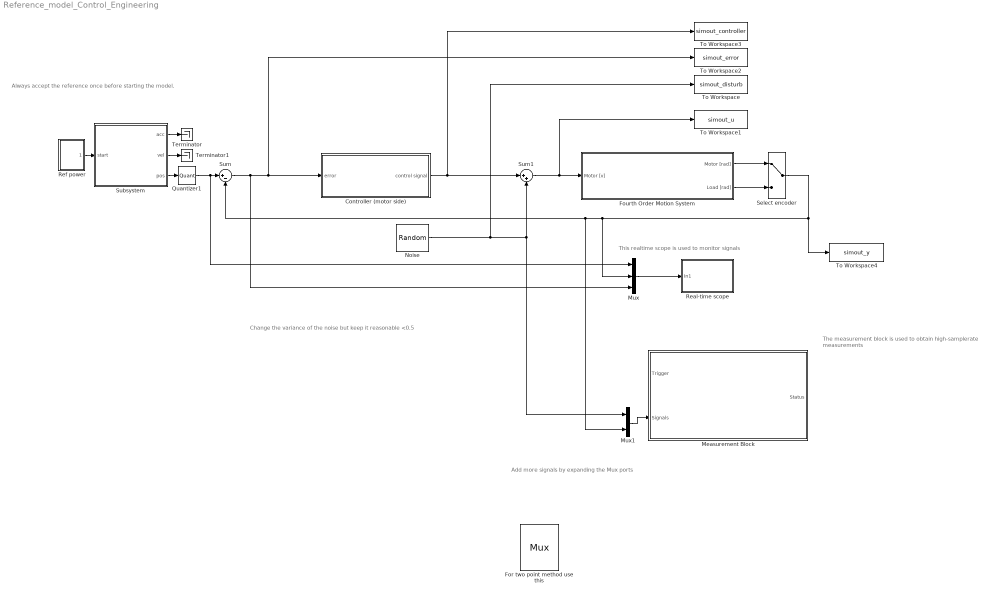
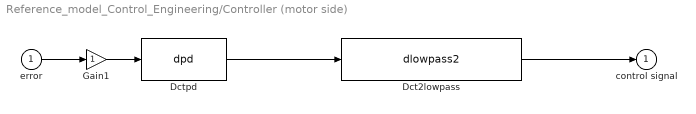
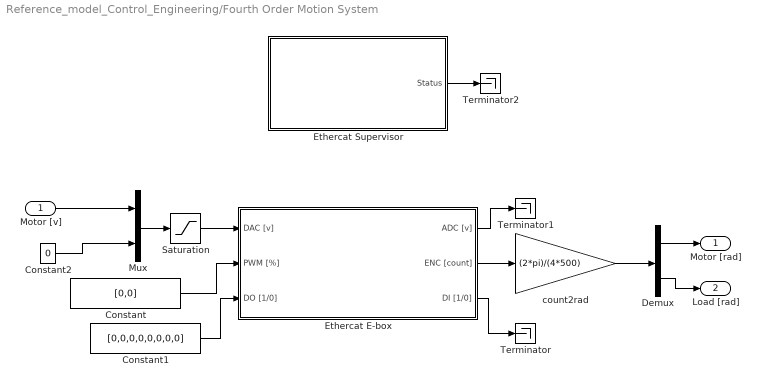
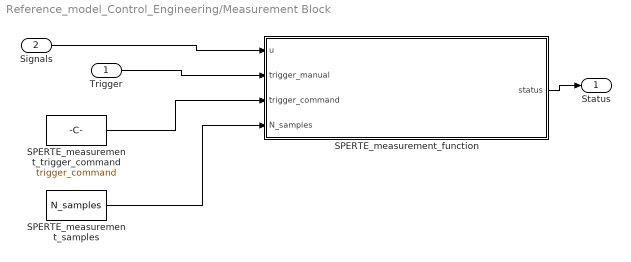
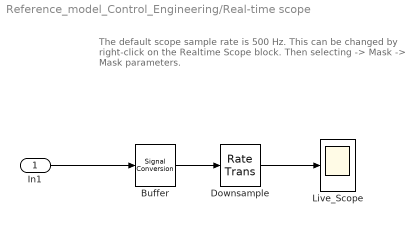
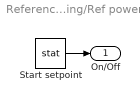
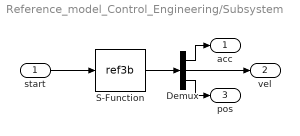
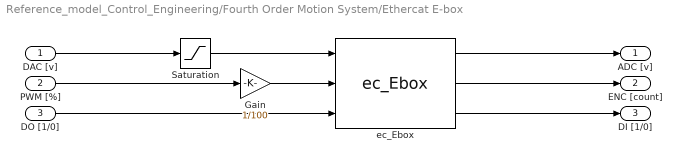
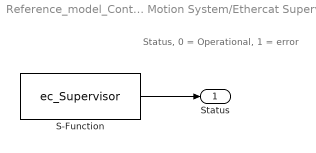
== matlab function Reference_model_Control_Engineering/Measurement Block/SPERTE_measurement_function ==
function status = perform_measurement(u, trigger_manual, trigger_command, triggertype, N_samples)

%% Persistent variables
persistent fileID NF busy NS

% Init parameters
if isempty(NF)
    NF = int16(0);
end
if isempty(NS)
    NS = uint32(0);
end
if isempty(fileID)
    fileID = 0;
end
if isempty(busy)
    busy = uint8(0);
end

%% Check the triggers
if ( (triggertype == 0 && trigger_manual == 1) || (triggertype == 1 && trigger_command == 1) || (triggertype == 2 && (trigger_command == 1 || trigger_manual == 1) ) )
    if busy == 1
        % We are already busy, nothing to do
    else
        % We should start a new one
        fileID = fopen(sprintf('measurement_%d.bin',NF),'w');  
        NF = NF + 1;
        busy = uint8(1);
        NS = uint32(0);
    end
end

% We have started a measurement
if busy == 1
    if NS < N_samples 
        % Here we write the sample, in single precision float
        fwrite(fileID,u,'single');
        NS = NS + uint32(1);
    else
       % We have N samples already, we are done
       fclose(fileID);
       busy = uint8(0);
       NS = uint32(0);
    end
      
end
    % Output state
    status = uint8(busy);
end

/*
 * Reference_model_Control_Engineering.c
 *
 * Academic License - for use in teaching, academic research, and meeting
 * course requirements at degree granting institutions only.  Not for
 * government, commercial, or other organizational use.
 *
 * Code generation for model "Reference_model_Control_Engineering".
 *
 * Model version              : 7.3
 * Simulink Coder version : 9.6 (R2021b) 14-May-2021
 * C source code generated on : Mon Mar 24 13:10:58 2025
 *
 * Target selection: ert.tlc
 * Note: GRT includes extra infrastructure and instrumentation for prototyping
 * Embedded hardware selection: ARM Compatible->ARM Cortex
 * Code generation objectives: Unspecified
 * Validation result: Not run
 */

#include "Reference_model_Control_Engineering.h"
#include "Reference_model_Control_Engineering_private.h"
#include "Reference_model_Control_Engineering_dt.h"

/* Block signals (default storage) */
B_Reference_model_Control_Engineering_T Reference_model_Control_Engineering_B;

/* Block states (default storage) */
DW_Reference_model_Control_Engineering_T Reference_model_Control_Engineering_DW;

/* Real-time model */
static RT_MODEL_Reference_model_Control_Engineering_T
  Reference_model_Control_Engineering_M_;
RT_MODEL_Reference_model_Control_Engineering_T *const
  Reference_model_Control_Engineering_M =
  &Reference_model_Control_Engineering_M_;

/* Forward declaration for local functions */
static void Reference_model__emxInit_char_T(emxArray_char_T_Reference_mod_T
  **pEmxArray, int32_T numDimensions);
static void Refere_emxEnsureCapacity_char_T(emxArray_char_T_Reference_mod_T
  *emxArray, int32_T oldNumel);
static void Reference_model__emxFree_char_T(emxArray_char_T_Reference_mod_T
  **pEmxArray);
static int8_T Reference_model_Contro_filedata(void);
static int8_T Reference_model_Control__cfopen(const
  emxArray_char_T_Reference_mod_T *cfilename, const char_T *cpermission);
static int32_T Reference_model_Control_cfclose(real_T fid);
static void rate_monotonic_scheduler(void);

/*
 * Set which subrates need to run this base step (base rate always runs).
 * This function must be called prior to calling the model step function
 * in order to "remember" which rates need to run this base step.  The
 * buffering of events allows for overlapping preemption.
 */
void Reference_model_Control_Engineering_SetEventsForThisBaseStep(boolean_T
  *eventFlags)
{
  /* Task runs when its counter is zero, computed via rtmStepTask macro */
  eventFlags[2] = ((boolean_T)rtmStepTask(Reference_model_Control_Engineering_M,
    2));
}

/*
 *         This function updates active task flag for each subrate
 *         and rate transition flags for tasks that exchange data.
 *         The function assumes rate-monotonic multitasking scheduler.
 *         The function must be called at model base rate so that
 *         the generated code self-manages all its subrates and rate
 *         transition flags.
 */
static void rate_monotonic_scheduler(void)
{
  /* To ensure a deterministic data transfer between two rates,
   * data is transferred at the priority of a fast task and the frequency
   * of the slow task.  The following flags indicate when the data transfer
   * happens.  That is, a rate interaction flag is set true when both rates
   * will run, and false otherwise.
   */

  /* tid 1 shares data with slower tid rate: 2 */
  if (Reference_model_Control_Engineering_M->Timing.TaskCounters.TID[1] == 0) {
    Reference_model_Control_Engineering_M->Timing.RateInteraction.TID1_2 =
      (Reference_model_Control_Engineering_M->Timing.TaskCounters.TID[2] == 0);

    /* update PerTaskSampleHits matrix for non-inline sfcn */
    Reference_model_Control_Engineering_M->Timing.perTaskSampleHits[5] =
      Reference_model_Control_Engineering_M->Timing.RateInteraction.TID1_2;
  }

  /* Compute which subrates run during the next base time step.  Subrates
   * are an integer multiple of the base rate counter.  Therefore, the subtask
   * counter is reset when it reaches its limit (zero means run).
   */
  (Reference_model_Control_Engineering_M->Timing.TaskCounters.TID[2])++;
  if ((Reference_model_Control_Engineering_M->Timing.TaskCounters.TID[2]) > 7) {/* Sample time: [0.002s, 0.0s] */
    Reference_model_Control_Engineering_M->Timing.TaskCounters.TID[2] = 0;
  }
}

real_T rt_urand_Upu32_Yd_f_pw_snf(uint32_T *u)
{
  uint32_T hi;
  uint32_T lo;

  /* Uniform random number generator (random number between 0 and 1)

     #define IA      16807                      magic multiplier = 7^5
     #define IM      2147483647                 modulus = 2^31-1
     #define IQ      127773                     IM div IA
     #define IR      2836                       IM modulo IA
     #define S       4.656612875245797e-10      reciprocal of 2^31-1
     test = IA * (seed % IQ) - IR * (seed/IQ)
     seed = test < 0 ? (test + IM) : test
     return (seed*S)
   */
  lo = *u % 127773U * 16807U;
  hi = *u / 127773U * 2836U;
  if (lo < hi) {
    *u = 2147483647U - (hi - lo);
  } else {
    *u = lo - hi;
  }

  return (real_T)*u * 4.6566128752457969E-10;
}

real_T rt_nrand_Upu32_Yd_f_pw_snf(uint32_T *u)
{
  real_T si;
  real_T sr;
  real_T y;

  /* Normal (Gaussian) random number generator */
  do {
    sr = 2.0 * rt_urand_Upu32_Yd_f_pw_snf(u) - 1.0;
    si = 2.0 * rt_urand_Upu32_Yd_f_pw_snf(u) - 1.0;
    si = sr * sr + si * si;
  } while (si > 1.0);

  y = sqrt(-2.0 * log(si) / si) * sr;
  return y;
}

static void Reference_model__emxInit_char_T(emxArray_char_T_Reference_mod_T
  **pEmxArray, int32_T numDimensions)
{
  emxArray_char_T_Reference_mod_T *emxArray;
  int32_T i;
  *pEmxArray = (emxArray_char_T_Reference_mod_T *)malloc(sizeof
    (emxArray_char_T_Reference_mod_T));
  emxArray = *pEmxArray;
  emxArray->data = (char_T *)NULL;
  emxArray->numDimensions = numDimensions;
  emxArray->size = (int32_T *)malloc(sizeof(int32_T) * numDimensions);
  emxArray->allocatedSize = 0;
  emxArray->canFreeData = true;
  for (i = 0; i < numDimensions; i++) {
    emxArray->size[i] = 0;
  }
}

static void Refere_emxEnsureCapacity_char_T(emxArray_char_T_Reference_mod_T
  *emxArray, int32_T oldNumel)
{
  int32_T i;
  int32_T newNumel;
  void *newData;
  if (oldNumel < 0) {
    oldNumel = 0;
  }

  newNumel = 1;
  for (i = 0; i < emxArray->numDimensions; i++) {
    newNumel *= emxArray->size[i];
  }

  if (newNumel > emxArray->allocatedSize) {
    i = emxArray->allocatedSize;
    if (i < 16) {
      i = 16;
    }

    while (i < newNumel) {
      if (i > 1073741823) {
        i = MAX_int32_T;
      } else {
        i <<= 1;
      }
    }

    newData = calloc((uint32_T)i, sizeof(char_T));
    if (emxArray->data != NULL) {
      memcpy(newData, emxArray->data, sizeof(char_T) * oldNumel);
      if (emxArray->canFreeData) {
        free(emxArray->data);
      }
    }

    emxArray->data = (char_T *)newData;
    emxArray->allocatedSize = i;
    emxArray->canFreeData = true;
  }
}

static void Reference_model__emxFree_char_T(emxArray_char_T_Reference_mod_T
  **pEmxArray)
{
  if (*pEmxArray != (emxArray_char_T_Reference_mod_T *)NULL) {
    if (((*pEmxArray)->data != (char_T *)NULL) && (*pEmxArray)->canFreeData) {
      free((*pEmxArray)->data);
    }

    free((*pEmxArray)->size);
    free(*pEmxArray);
    *pEmxArray = (emxArray_char_T_Reference_mod_T *)NULL;
  }
}

/* Function for MATLAB Function: '<S3>/SPERTE_measurement_function' */
static int8_T Reference_model_Contro_filedata(void)
{
  int32_T k;
  int8_T f;
  boolean_T exitg1;
  f = 0;
  k = 1;
  exitg1 = false;
  while ((!exitg1) && (k - 1 < 20)) {
    if (Reference_model_Control_Engineering_DW.eml_openfiles[(int8_T)k - 1] ==
        NULL) {
      f = (int8_T)k;
      exitg1 = true;
    } else {
      k++;
    }
  }

  return f;
}

/* Function for MATLAB Function: '<S3>/SPERTE_measurement_function' */
static int8_T Reference_model_Control__cfopen(const
  emxArray_char_T_Reference_mod_T *cfilename, const char_T *cpermission)
{
  emxArray_char_T_Reference_mod_T *ccfilename;
  int32_T i;
  int32_T loop_ub;
  int8_T fileid;
  int8_T j;
  fileid = -1;
  j = Reference_model_Contro_filedata();
  if (j >= 1) {
    Reference_model__emxInit_char_T(&ccfilename, 2);
    i = ccfilename->size[0] * ccfilename->size[1];
    ccfilename->size[0] = 1;
    ccfilename->size[1] = cfilename->size[1] + 1;
    Refere_emxEnsureCapacity_char_T(ccfilename, i);
    loop_ub = cfilename->size[1];
    for (i = 0; i < loop_ub; i++) {
      ccfilename->data[i] = cfilename->data[i];
    }

    ccfilename->data[cfilename->size[1]] = '\x00';
    Reference_model_Control_Engineering_B.filestar_m = fopen(&ccfilename->data[0],
      cpermission);
    Reference_model__emxFree_char_T(&ccfilename);
    if (Reference_model_Control_Engineering_B.filestar_m != NULL) {
      Reference_model_Control_Engineering_DW.eml_openfiles[j - 1] =
        Reference_model_Control_Engineering_B.filestar_m;
      Reference_model_Control_Engineering_DW.eml_autoflush[j - 1] = true;
      i = j + 2;
      if (j + 2 > 127) {
        i = 127;
      }

      fileid = (int8_T)i;
    }
  }

  return fileid;
}

real_T rt_roundd_snf(real_T u)
{
  real_T y;
  if (fabs(u) < 4.503599627370496E+15) {
    if (u >= 0.5) {
      y = floor(u + 0.5);
    } else if (u > -0.5) {
      y = u * 0.0;
    } else {
      y = ceil(u - 0.5);
    }
  } else {
    y = u;
  }

  return y;
}

/* Function for MATLAB Function: '<S3>/SPERTE_measurement_function' */
static int32_T Reference_model_Control_cfclose(real_T fid)
{
  FILE* filestar;
  int32_T cst;
  int32_T st;
  int8_T b_fileid;
  int8_T fileid;
  st = -1;
  fileid = (int8_T)rt_roundd_snf(fid);
  if ((fileid < 0) || (fid != fileid)) {
    fileid = -1;
  }

  b_fileid = fileid;
  if (fileid < 0) {
    b_fileid = -1;
  }

  if (b_fileid >= 3) {
    filestar = Reference_model_Control_Engineering_DW.eml_openfiles[b_fileid - 3];
  } else if (b_fileid == 0) {
    filestar = stdin;
  } else if (b_fileid == 1) {
    filestar = stdout;
  } else if (b_fileid == 2) {
    filestar = stderr;
  } else {
    filestar = NULL;
  }

  if ((filestar != NULL) && (fileid >= 3)) {
    cst = fclose(filestar);
    if (cst == 0) {
      st = 0;
      Reference_model_Control_Engineering_DW.eml_openfiles[fileid - 3] = NULL;
      Reference_model_Control_Engineering_DW.eml_autoflush[fileid - 3] = true;
    }
  }

  return st;
}

/* Model step function for TID0 */
void Reference_model_Control_Engineering_step0(void) /* Sample time: [0.0s, 0.0s] */
{
  emxArray_char_T_Reference_mod_T *charStr;
  emxArray_char_T_Reference_mod_T *charStr_0;
  int32_T tmp;
  uint32_T qY;
  int8_T b_fileid;
  boolean_T autoflush;

  {                                    /* Sample time: [0.0s, 0.0s] */
    rate_monotonic_scheduler();
  }

  /* RandomNumber: '<Root>/Noise' */
  Reference_model_Control_Engineering_B.Noise =
    Reference_model_Control_Engineering_DW.NextOutput;

  /* S-Function (ec_Supervisor): '<S8>/S-Function' */

  /* Level2 S-Function Block: '<S8>/S-Function' (ec_Supervisor) */
  {
    SimStruct *rts = Reference_model_Control_Engineering_M->childSfunctions[0];
    sfcnOutputs(rts,0);
  }

  /* S-Function (ec_Ebox): '<S7>/ec_Ebox' */

  /* Level2 S-Function Block: '<S7>/ec_Ebox' (ec_Ebox) */
  {
    SimStruct *rts = Reference_model_Control_Engineering_M->childSfunctions[1];
    sfcnOutputs(rts,0);
  }

  /* ManualSwitch: '<Root>/Select encoder' */
  if (Reference_model_Control_Engineering_P.Selectencoder_CurrentSetting == 1) {
    /* ManualSwitch: '<Root>/Select encoder' incorporates:
     *  Gain: '<S2>/count2rad'
     */
    Reference_model_Control_Engineering_B.Selectencoder =
      Reference_model_Control_Engineering_P.count2rad_Gain *
      Reference_model_Control_Engineering_B.ec_Ebox_o2[0];
  } else {
    /* ManualSwitch: '<Root>/Select encoder' incorporates:
     *  Gain: '<S2>/count2rad'
     */
    Reference_model_Control_Engineering_B.Selectencoder =
      Reference_model_Control_Engineering_P.count2rad_Gain *
      Reference_model_Control_Engineering_B.ec_Ebox_o2[1];
  }

  /* End of ManualSwitch: '<Root>/Select encoder' */

  /* MATLAB Function: '<S3>/SPERTE_measurement_function' incorporates:
   *  Constant: '<S3>/SPERTE_measurement_samples'
   *  Constant: '<S3>/SPERTE_measurement_trigger_command'
   *  SignalConversion generated from: '<S9>/ SFunction '
   */
  if ((((Reference_model_Control_Engineering_P.MeasurementBlock_triggertype == 1)
        &&
        (Reference_model_Control_Engineering_P.MeasurementBlock_trigger_comman ==
         1)) ||
       ((Reference_model_Control_Engineering_P.MeasurementBlock_triggertype == 2)
        &&
        (Reference_model_Control_Engineering_P.MeasurementBlock_trigger_comman ==
         1))) && (Reference_model_Control_Engineering_DW.busy != 1)) {
    Reference_model__emxInit_char_T(&charStr, 2);
    Reference_model_Control_Engineering_B.nbytes = (int32_T)snprintf(NULL, 0,
      "measurement_%d.bin", Reference_model_Control_Engineering_DW.NF) + 1;
    tmp = charStr->size[0] * charStr->size[1];
    charStr->size[0] = 1;
    charStr->size[1] = Reference_model_Control_Engineering_B.nbytes;
    Refere_emxEnsureCapacity_char_T(charStr, tmp);
    snprintf(&charStr->data[0], (size_t)
             Reference_model_Control_Engineering_B.nbytes, "measurement_%d.bin",
             Reference_model_Control_Engineering_DW.NF);
    if (1 > Reference_model_Control_Engineering_B.nbytes - 1) {
      Reference_model_Control_Engineering_B.loop_ub = -1;
    } else {
      Reference_model_Control_Engineering_B.loop_ub =
        Reference_model_Control_Engineering_B.nbytes - 2;
    }

    Reference_model__emxInit_char_T(&charStr_0, 2);
    tmp = charStr_0->size[0] * charStr_0->size[1];
    charStr_0->size[0] = 1;
    charStr_0->size[1] = Reference_model_Control_Engineering_B.loop_ub + 1;
    Refere_emxEnsureCapacity_char_T(charStr_0, tmp);
    for (Reference_model_Control_Engineering_B.nbytes = 0;
         Reference_model_Control_Engineering_B.nbytes <=
         Reference_model_Control_Engineering_B.loop_ub;
         Reference_model_Control_Engineering_B.nbytes++) {
      charStr_0->data[Reference_model_Control_Engineering_B.nbytes] =
        charStr->data[Reference_model_Control_Engineering_B.nbytes];
    }

    Reference_model__emxFree_char_T(&charStr);
    b_fileid = Reference_model_Control__cfopen(charStr_0, "wb");
    Reference_model_Control_Engineering_DW.fileID = b_fileid;
    Reference_model_Control_Engineering_B.nbytes =
      Reference_model_Control_Engineering_DW.NF + 1;
    Reference_model__emxFree_char_T(&charStr_0);
    if (Reference_model_Control_Engineering_DW.NF + 1 > 32767) {
      Reference_model_Control_Engineering_B.nbytes = 32767;
    }

    Reference_model_Control_Engineering_DW.NF = (int16_T)
      Reference_model_Control_Engineering_B.nbytes;
    Reference_model_Control_Engineering_DW.busy = 1U;
    Reference_model_Control_Engineering_DW.NS = 0U;
  }

  if (Reference_model_Control_Engineering_DW.busy == 1) {
    if (Reference_model_Control_Engineering_DW.NS <
        Reference_model_Control_Engineering_P.MeasurementBlock_N_samples) {
      b_fileid = (int8_T)rt_roundd_snf
        (Reference_model_Control_Engineering_DW.fileID);
      if ((b_fileid < 0) || (Reference_model_Control_Engineering_DW.fileID !=
                             b_fileid)) {
        b_fileid = -1;
      }

      if (b_fileid >= 3) {
        Reference_model_Control_Engineering_B.filestar =
          Reference_model_Control_Engineering_DW.eml_openfiles[b_fileid - 3];
        autoflush =
          Reference_model_Control_Engineering_DW.eml_autoflush[b_fileid - 3];
      } else if (b_fileid == 0) {
        Reference_model_Control_Engineering_B.filestar = stdin;
        autoflush = true;
      } else if (b_fileid == 1) {
        Reference_model_Control_Engineering_B.filestar = stdout;
        autoflush = true;
      } else if (b_fileid == 2) {
        Reference_model_Control_Engineering_B.filestar = stderr;
        autoflush = true;
      } else {
        Reference_model_Control_Engineering_B.filestar = NULL;
        autoflush = true;
      }

      if (!(Reference_model_Control_Engineering_DW.fileID != 0.0)) {
        Reference_model_Control_Engineering_B.filestar = NULL;
      }

      if (!(Reference_model_Control_Engineering_B.filestar == NULL)) {
        Reference_model_Control_Engineering_B.xout[0] = (real32_T)
          Reference_model_Control_Engineering_B.Noise;
        Reference_model_Control_Engineering_B.xout[1] = (real32_T)
          Reference_model_Control_Engineering_B.Selectencoder;
        Reference_model_Control_Engineering_B.bytesOutSizet = fwrite
          (&Reference_model_Control_Engineering_B.xout[0], sizeof(real32_T),
           (size_t)2, Reference_model_Control_Engineering_B.filestar);
        if (((real_T)Reference_model_Control_Engineering_B.bytesOutSizet > 0.0) &&
            autoflush) {
          fflush(Reference_model_Control_Engineering_B.filestar);
        }
      }

      qY = Reference_model_Control_Engineering_DW.NS + 1U;
      if (Reference_model_Control_Engineering_DW.NS + 1U <
          Reference_model_Control_Engineering_DW.NS) {
        qY = MAX_uint32_T;
      }

      Reference_model_Control_Engineering_DW.NS = qY;
    } else {
      Reference_model_Control_cfclose
        (Reference_model_Control_Engineering_DW.fileID);
      Reference_model_Control_Engineering_DW.busy = 0U;
      Reference_model_Control_Engineering_DW.NS = 0U;
    }
  }

  /* End of MATLAB Function: '<S3>/SPERTE_measurement_function' */

  /* Constant: '<S5>/Start setpoint' */
  Reference_model_Control_Engineering_B.Startsetpoint =
    Reference_model_Control_Engineering_P.Refpower_stat;

  /* S-Function (ref3b): '<S6>/S-Function' */

  /* Level2 S-Function Block: '<S6>/S-Function' (ref3b) */
  {
    SimStruct *rts = Reference_model_Control_Engineering_M->childSfunctions[2];
    sfcnOutputs(rts,0);
  }

  /* Quantizer: '<Root>/Quantizer1' */
  Reference_model_Control_Engineering_B.Quantizer1 = rt_roundd_snf
    (Reference_model_Control_Engineering_B.SFunction_c[2] /
     Reference_model_Control_Engineering_P.Quantizer1_Interval) *
    Reference_model_Control_Engineering_P.Quantizer1_Interval;

  /* Sum: '<Root>/Sum' */
  Reference_model_Control_Engineering_B.Sum =
    Reference_model_Control_Engineering_B.Quantizer1 -
    Reference_model_Control_Engineering_B.Selectencoder;

  /* SignalConversion: '<S4>/Buffer' */
  Reference_model_Control_Engineering_B.Buffer[0] =
    Reference_model_Control_Engineering_B.Quantizer1;
  Reference_model_Control_Engineering_B.Buffer[1] =
    Reference_model_Control_Engineering_B.Selectencoder;
  Reference_model_Control_Engineering_B.Buffer[2] =
    Reference_model_Control_Engineering_B.Sum;

  /* RateTransition: '<S4>/Downsample' */
  if (Reference_model_Control_Engineering_M->Timing.RateInteraction.TID1_2) {
    Reference_model_Control_Engineering_DW.Downsample_Buffer[0] =
      Reference_model_Control_Engineering_B.Buffer[0];
    Reference_model_Control_Engineering_DW.Downsample_Buffer[1] =
      Reference_model_Control_Engineering_B.Buffer[1];
    Reference_model_Control_Engineering_DW.Downsample_Buffer[2] =
      Reference_model_Control_Engineering_B.Buffer[2];
  }

  /* End of RateTransition: '<S4>/Downsample' */
  /* Gain: '<S1>/Gain1' */
  Reference_model_Control_Engineering_B.Gain1 =
    Reference_model_Control_Engineering_P.Gain1_Gain *
    Reference_model_Control_Engineering_B.Sum;

  /* S-Function (dpd): '<S1>/Dctpd' */

  /* Level2 S-Function Block: '<S1>/Dctpd' (dpd) */
  {
    SimStruct *rts = Reference_model_Control_Engineering_M->childSfunctions[3];
    sfcnOutputs(rts,0);
  }

  /* S-Function (dlowpass2): '<S1>/Dct2lowpass' */

  /* Level2 S-Function Block: '<S1>/Dct2lowpass' (dlowpass2) */
  {
    SimStruct *rts = Reference_model_Control_Engineering_M->childSfunctions[4];
    sfcnOutputs(rts,0);
  }

  /* Sum: '<Root>/Sum1' */
  Reference_model_Control_Engineering_B.Sum1 =
    Reference_model_Control_Engineering_B.Dct2lowpass +
    Reference_model_Control_Engineering_B.Noise;

  /* Constant: '<S2>/Constant1' */
  memcpy(&Reference_model_Control_Engineering_B.Constant1[0],
         &Reference_model_Control_Engineering_P.Constant1_Value[0], sizeof
         (real_T) << 3U);

  /* Gain: '<S7>/Gain' incorporates:
   *  Constant: '<S2>/Constant'
   */
  Reference_model_Control_Engineering_B.Gain[0] =
    Reference_model_Control_Engineering_P.Gain_Gain *
    Reference_model_Control_Engineering_P.Constant_Value[0];
  Reference_model_Control_Engineering_B.Gain[1] =
    Reference_model_Control_Engineering_P.Gain_Gain *
    Reference_model_Control_Engineering_P.Constant_Value[1];

  /* Saturate: '<S2>/Saturation' */
  if (Reference_model_Control_Engineering_B.Sum1 >
      Reference_model_Control_Engineering_P.Saturation_UpperSat) {
    Reference_model_Control_Engineering_B.Quantizer1 =
      Reference_model_Control_Engineering_P.Saturation_UpperSat;
  } else if (Reference_model_Control_Engineering_B.Sum1 <
             Reference_model_Control_Engineering_P.Saturation_LowerSat) {
    Reference_model_Control_Engineering_B.Quantizer1 =
      Reference_model_Control_Engineering_P.Saturation_LowerSat;
  } else {
    Reference_model_Control_Engineering_B.Quantizer1 =
      Reference_model_Control_Engineering_B.Sum1;
  }

  /* Saturate: '<S7>/Saturation' */
  if (Reference_model_Control_Engineering_B.Quantizer1 >
      Reference_model_Control_Engineering_P.Saturation_UpperSat_d) {
    /* Saturate: '<S7>/Saturation' */
    Reference_model_Control_Engineering_B.Saturation[0] =
      Reference_model_Control_Engineering_P.Saturation_UpperSat_d;
  } else if (Reference_model_Control_Engineering_B.Quantizer1 <
             Reference_model_Control_Engineering_P.Saturation_LowerSat_e) {
    /* Saturate: '<S7>/Saturation' */
    Reference_model_Control_Engineering_B.Saturation[0] =
      Reference_model_Control_Engineering_P.Saturation_LowerSat_e;
  } else {
    /* Saturate: '<S7>/Saturation' */
    Reference_model_Control_Engineering_B.Saturation[0] =
      Reference_model_Control_Engineering_B.Quantizer1;
  }

  /* Saturate: '<S2>/Saturation' incorporates:
   *  Constant: '<S2>/Constant2'
   */
  if (Reference_model_Control_Engineering_P.Constant2_Value >
      Reference_model_Control_Engineering_P.Saturation_UpperSat) {
    Reference_model_Control_Engineering_B.Quantizer1 =
      Reference_model_Control_Engineering_P.Saturation_UpperSat;
  } else if (Reference_model_Control_Engineering_P.Constant2_Value <
             Reference_model_Control_Engineering_P.Saturation_LowerSat) {
    Reference_model_Control_Engineering_B.Quantizer1 =
      Reference_model_Control_Engineering_P.Saturation_LowerSat;
  } else {
    Reference_model_Control_Engineering_B.Quantizer1 =
      Reference_model_Control_Engineering_P.Constant2_Value;
  }

  /* Saturate: '<S7>/Saturation' */
  if (Reference_model_Control_Engineering_B.Quantizer1 >
      Reference_model_Control_Engineering_P.Saturation_UpperSat_d) {
    /* Saturate: '<S7>/Saturation' */
    Reference_model_Control_Engineering_B.Saturation[1] =
      Reference_model_Control_Engineering_P.Saturation_UpperSat_d;
  } else if (Reference_model_Control_Engineering_B.Quantizer1 <
             Reference_model_Control_Engineering_P.Saturation_LowerSat_e) {
    /* Saturate: '<S7>/Saturation' */
    Reference_model_Control_Engineering_B.Saturation[1] =
      Reference_model_Control_Engineering_P.Saturation_LowerSat_e;
  } else {
    /* Saturate: '<S7>/Saturation' */
    Reference_model_Control_Engineering_B.Saturation[1] =
      Reference_model_Control_Engineering_B.Quantizer1;
  }

  /* Update for RandomNumber: '<Root>/Noise' */
  Reference_model_Control_Engineering_DW.NextOutput = rt_nrand_Upu32_Yd_f_pw_snf
    (&Reference_model_Control_Engineering_DW.RandSeed) *
    Reference_model_Control_Engineering_P.Noise_StdDev +
    Reference_model_Control_Engineering_P.Noise_Mean;

  /* External mode */
  rtExtModeUploadCheckTrigger(3);
  rtExtModeUpload(1, (real_T)Reference_model_Control_Engineering_M->Timing.t[0]);

  /* signal main to stop simulation */
  {                                    /* Sample time: [0.0s, 0.0s] */
    if ((rtmGetTFinal(Reference_model_Control_Engineering_M)!=-1) &&
        !((rtmGetTFinal(Reference_model_Control_Engineering_M)-
           Reference_model_Control_Engineering_M->Timing.t[0]) >
          Reference_model_Control_Engineering_M->Timing.t[0] * (DBL_EPSILON))) {
      rtmSetErrorStatus(Reference_model_Control_Engineering_M,
                        "Simulation finished");
    }

    if (rtmGetStopRequested(Reference_model_Control_Engineering_M)) {
      rtmSetErrorStatus(Reference_model_Control_Engineering_M,
                        "Simulation finished");
    }
  }

  /* Update absolute time */
  /* The "clockTick0" counts the number of times the code of this task has
   * been executed. The absolute time is the multiplication of "clockTick0"
   * and "Timing.stepSize0". Size of "clockTick0" ensures timer will not
   * overflow during the application lifespan selected.
   * Timer of this task consists of two 32 bit unsigned integers.
   * The two integers represent the low bits Timing.clockTick0 and the high bits
   * Timing.clockTickH0. When the low bit overflows to 0, the high bits increment.
   */
  if (!(++Reference_model_Control_Engineering_M->Timing.clockTick0)) {
    ++Reference_model_Control_Engineering_M->Timing.clockTickH0;
  }

  Reference_model_Control_Engineering_M->Timing.t[0] =
    Reference_model_Control_Engineering_M->Timing.clockTick0 *
    Reference_model_Control_Engineering_M->Timing.stepSize0 +
    Reference_model_Control_Engineering_M->Timing.clockTickH0 *
    Reference_model_Control_Engineering_M->Timing.stepSize0 * 4294967296.0;

  /* Update absolute time */
  /* The "clockTick1" counts the number of times the code of this task has
   * been executed. The absolute time is the multiplication of "clockTick1"
   * and "Timing.stepSize1". Size of "clockTick1" ensures timer will not
   * overflow during the application lifespan selected.
   * Timer of this task consists of two 32 bit unsigned integers.
   * The two integers represent the low bits Timing.clockTick1 and the high bits
   * Timing.clockTickH1. When the low bit overflows to 0, the high bits increment.
   */
  if (!(++Reference_model_Control_Engineering_M->Timing.clockTick1)) {
    ++Reference_model_Control_Engineering_M->Timing.clockTickH1;
  }

  Reference_model_Control_Engineering_M->Timing.t[1] =
    Reference_model_Control_Engineering_M->Timing.clockTick1 *
    Reference_model_Control_Engineering_M->Timing.stepSize1 +
    Reference_model_Control_Engineering_M->Timing.clockTickH1 *
    Reference_model_Control_Engineering_M->Timing.stepSize1 * 4294967296.0;
}

/* Model step function for TID2 */
void Reference_model_Control_Engineering_step2(void) /* Sample time: [0.002s, 0.0s] */
{
  /* RateTransition: '<S4>/Downsample' */
  Reference_model_Control_Engineering_B.Downsample[0] =
    Reference_model_Control_Engineering_DW.Downsample_Buffer[0];
  Reference_model_Control_Engineering_B.Downsample[1] =
    Reference_model_Control_Engineering_DW.Downsample_Buffer[1];
  Reference_model_Control_Engineering_B.Downsample[2] =
    Reference_model_Control_Engineering_DW.Downsample_Buffer[2];
  rtExtModeUpload(2, (real_T)
                  (((Reference_model_Control_Engineering_M->Timing.clockTick2+
                     Reference_model_Control_Engineering_M->Timing.clockTickH2*
                     4294967296.0)) * 0.002));

  /* Update absolute time */
  /* The "clockTick2" counts the number of times the code of this task has
   * been executed. The resolution of this integer timer is 0.002, which is the step size
   * of the task. Size of "clockTick2" ensures timer will not overflow during the
   * application lifespan selected.
   * Timer of this task consists of two 32 bit unsigned integers.
   * The two integers represent the low bits Timing.clockTick2 and the high bits
   * Timing.clockTickH2. When the low bit overflows to 0, the high bits increment.
   */
  Reference_model_Control_Engineering_M->Timing.clockTick2++;
  if (!Reference_model_Control_Engineering_M->Timing.clockTick2) {
    Reference_model_Control_Engineering_M->Timing.clockTickH2++;
  }
}

/* Use this function only if you need to maintain compatibility with an existing static main program. */
void Reference_model_Control_Engineering_step(int_T tid)
{
  switch (tid) {
   case 0 :
    Reference_model_Control_Engineering_step0();
    break;

   case 2 :
    Reference_model_Control_Engineering_step2();
    break;

   default :
    /* do nothing */
    break;
  }
}
